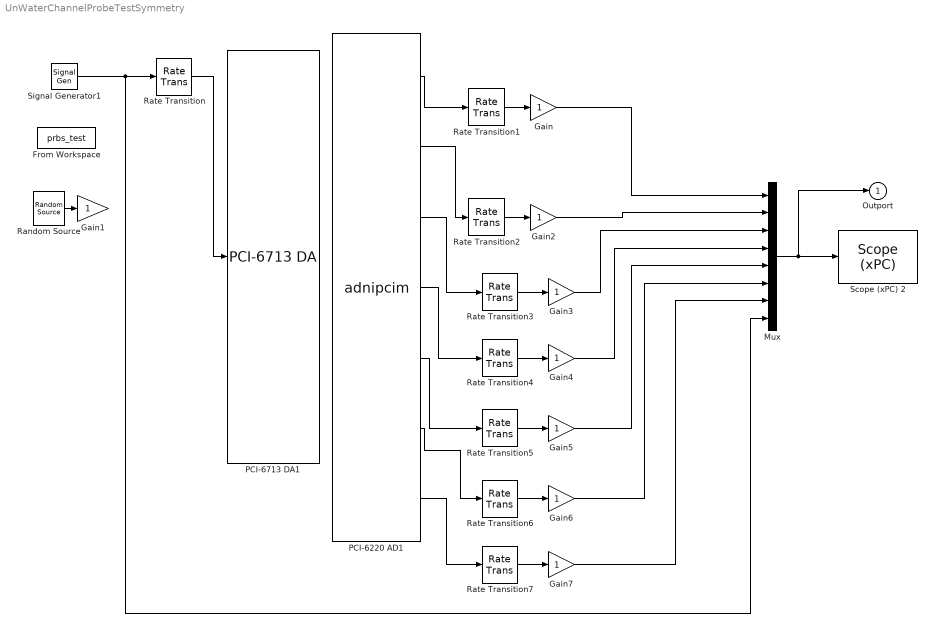
/*
 * UnWaterChannelProbeTestSymmetry.c
 *
 * Code generation for model "UnWaterChannelProbeTestSymmetry.mdl".
 *
 * Model version              : 1.97
 * Simulink Coder version : 8.0 (R2011a) 09-Mar-2011
 * C source code generated on : Mon Jul 15 14:46:02 2013
 *
 * Target selection: xpctarget.tlc
 * Note: GRT includes extra infrastructure and instrumentation for prototyping
 * Embedded hardware selection: Generic->32-bit x86 compatible
 * Code generation objectives: Unspecified
 * Validation result: Not run
 */

#include "rt_logging_mmi.h"
#include "UnWaterChannelProbeTestSymmetry_capi.h"
#include "UnWaterChannelProbeTestSymmetry.h"
#include "UnWaterChannelProbeTestSymmetry_private.h"
#include <stdio.h>
#include "UnWaterChannelProbeTestSymmetry_dt.h"

/* Block signals (auto storage) */
BlockIO_UnWaterChannelProbeTestSymmetry UnWaterChannelProbeTestSymmetry_B;

/* Block states (auto storage) */
D_Work_UnWaterChannelProbeTestSymmetry UnWaterChannelProbeTestSymmetry_DWork;

/* External outputs (root outports fed by signals with auto storage) */
ExternalOutputs_UnWaterChannelProbeTestSymmetry
  UnWaterChannelProbeTestSymmetry_Y;

/* Real-time model */
rtModel_UnWaterChannelProbeTestSymmetry UnWaterChannelProbeTestSymmetry_rtM_;
rtModel_UnWaterChannelProbeTestSymmetry *const
  UnWaterChannelProbeTestSymmetry_rtM = &UnWaterChannelProbeTestSymmetry_rtM_;
void RandSrcInitState_U_64(const uint32_T seed[], real_T state[], int32_T nChans)
{
  int32_T i;
  uint32_T j;
  int32_T k;
  int32_T n;
  real_T d;

  /* Start for S-Function (sdsprandsrc2): '<Root>/Random Source' */
  /* RandSrcInitState_U_64 */
  for (i = 0; i < nChans; i++) {
    j = seed[i] != 0U ? seed[i] : 2147483648U;
    state[35 * i + 34] = (real_T)j;
    for (k = 0; k < 32; k++) {
      d = 0.0;
      for (n = 0; n < 53; n++) {
        j ^= j << 13;
        j ^= j >> 17;
        j ^= j << 5;
        d = (real_T)((int32_T)(j >> 19) & 1) + (d + d);
      }

      state[35 * i + k] = ldexp(d, -53);
    }

    state[35 * i + 32] = 0.0;
    state[35 * i + 33] = 0.0;
  }

  /* End of S-Function (sdsprandsrc2): '<Root>/Random Source' */
}

void RandSrc_U_D(real_T y[], const real_T minVec[], int32_T minLen, const real_T
                 maxVec[], int32_T maxLen, real_T state[], int32_T nChans,
                 int32_T nSamps)
{
  int32_T one;
  int32_T lsw;
  int8_T (*onePtr)[];
  int32_T chan;
  real_T min;
  real_T max;
  int32_T samps;
  real_T d;
  int32_T i;
  uint32_T j;

  /* Start for S-Function (sdsprandsrc2): '<Root>/Random Source' */
  /* RandSrc_U_D */
  one = 1;
  onePtr = (int8_T (*)[])&one;
  lsw = ((*onePtr)[0U] == 0);
  for (chan = 0; chan < nChans; chan++) {
    min = minVec[minLen > 1 ? chan : 0];
    max = maxVec[maxLen > 1 ? chan : 0];
    max -= min;
    d = state[chan * 35 + 33];
    i = (int32_T)((uint32_T)d & 31U);
    d = state[chan * 35 + 34];
    j = (uint32_T)d;
    for (samps = 0; samps < nSamps; samps++) {
      /* "Subtract with borrow" generator */
      d = state[((i + 20) & 31) + chan * 35];
      d -= state[((i + 5) & 31) + chan * 35];
      d -= state[chan * 35 + 32];
      if (d >= 0.0) {
        state[chan * 35 + 32] = 0.0;
      } else {
        d++;

        /* set 1 in LSB */
        state[chan * 35 + 32] = 1.1102230246251565E-16;
      }

      state[chan * 35 + i] = d;
      i = (i + 1) & 31;

      /* XOR with shift register sequence */
      (*(int32_T (*)[])&d)[lsw] ^= (int32_T)j;
      j ^= j << 13;
      j ^= j >> 17;
      j ^= j << 5;
      (*(int32_T (*)[])&d)[lsw ^ 1] ^= (int32_T)(j & 1048575U);
      y[chan * nSamps + samps] = max * d + min;
    }

    state[chan * 35 + 33] = (real_T)i;
    state[chan * 35 + 34] = (real_T)j;
  }

  /* End of S-Function (sdsprandsrc2): '<Root>/Random Source' */
}

void RandSrcCreateSeeds_64(uint32_T initSeed, uint32_T seedArray[], int32_T
  numSeeds)
{
  real_T state[35];
  real_T tmp;
  real_T min;
  real_T max;
  int32_T i;
  real_T tmp_0;

  /* Start for S-Function (sdsprandsrc2): '<Root>/Random Source' */
  /* RandSrcCreateSeeds_64 */
  min = 0.0;
  max = 1.0;
  RandSrcInitState_U_64(&initSeed, state, 1);
  for (i = 0; i < numSeeds; i++) {
    RandSrc_U_D(&tmp, &min, 1, &max, 1, state, 1, 1);
    tmp_0 = tmp * 2.147483648E+9;
    seedArray[i] = (uint32_T)tmp_0;
  }

  /* End of S-Function (sdsprandsrc2): '<Root>/Random Source' */
}

/* Model output function */
void UnWaterChannelProbeTestSymmetry_output(int_T tid)
{
  real_T temp;

  /* Level2 S-Function Block: '<Root>/PCI-6220 AD1' (adnipcim) */
  {
    SimStruct *rts = UnWaterChannelProbeTestSymmetry_rtM->childSfunctions[0];
    sfcnOutputs(rts, 1);
  }

  /* RateTransition: '<Root>/Rate Transition1' */
  UnWaterChannelProbeTestSymmetry_B.RateTransition1 =
    UnWaterChannelProbeTestSymmetry_B.PCI6220AD1_o1;

  /* Gain: '<Root>/Gain' */
  UnWaterChannelProbeTestSymmetry_B.Gain =
    UnWaterChannelProbeTestSymmetry_P.Gain_Gain *
    UnWaterChannelProbeTestSymmetry_B.RateTransition1;

  /* RateTransition: '<Root>/Rate Transition2' */
  UnWaterChannelProbeTestSymmetry_B.RateTransition2 =
    UnWaterChannelProbeTestSymmetry_B.PCI6220AD1_o2;

  /* Gain: '<Root>/Gain2' */
  UnWaterChannelProbeTestSymmetry_B.Gain2 =
    UnWaterChannelProbeTestSymmetry_P.Gain2_Gain *
    UnWaterChannelProbeTestSymmetry_B.RateTransition2;

  /* RateTransition: '<Root>/Rate Transition3' */
  UnWaterChannelProbeTestSymmetry_B.RateTransition3 =
    UnWaterChannelProbeTestSymmetry_B.PCI6220AD1_o3;

  /* Gain: '<Root>/Gain3' */
  UnWaterChannelProbeTestSymmetry_B.Gain3 =
    UnWaterChannelProbeTestSymmetry_P.Gain3_Gain *
    UnWaterChannelProbeTestSymmetry_B.RateTransition3;

  /* RateTransition: '<Root>/Rate Transition4' */
  UnWaterChannelProbeTestSymmetry_B.RateTransition4 =
    UnWaterChannelProbeTestSymmetry_B.PCI6220AD1_o4;

  /* Gain: '<Root>/Gain4' */
  UnWaterChannelProbeTestSymmetry_B.Gain4 =
    UnWaterChannelProbeTestSymmetry_P.Gain4_Gain *
    UnWaterChannelProbeTestSymmetry_B.RateTransition4;

  /* RateTransition: '<Root>/Rate Transition5' */
  UnWaterChannelProbeTestSymmetry_B.RateTransition5 =
    UnWaterChannelProbeTestSymmetry_B.PCI6220AD1_o5;

  /* Gain: '<Root>/Gain5' */
  UnWaterChannelProbeTestSymmetry_B.Gain5 =
    UnWaterChannelProbeTestSymmetry_P.Gain5_Gain *
    UnWaterChannelProbeTestSymmetry_B.RateTransition5;

  /* RateTransition: '<Root>/Rate Transition6' */
  UnWaterChannelProbeTestSymmetry_B.RateTransition6 =
    UnWaterChannelProbeTestSymmetry_B.PCI6220AD1_o6;

  /* Gain: '<Root>/Gain6' */
  UnWaterChannelProbeTestSymmetry_B.Gain6 =
    UnWaterChannelProbeTestSymmetry_P.Gain6_Gain *
    UnWaterChannelProbeTestSymmetry_B.RateTransition6;

  /* RateTransition: '<Root>/Rate Transition7' */
  UnWaterChannelProbeTestSymmetry_B.RateTransition7 =
    UnWaterChannelProbeTestSymmetry_B.PCI6220AD1_o7;

  /* Gain: '<Root>/Gain7' */
  UnWaterChannelProbeTestSymmetry_B.Gain7 =
    UnWaterChannelProbeTestSymmetry_P.Gain7_Gain *
    UnWaterChannelProbeTestSymmetry_B.RateTransition7;

  /* SignalGenerator: '<Root>/Signal Generator1' */
  temp = UnWaterChannelProbeTestSymmetry_P.SignalGenerator1_Frequency *
    UnWaterChannelProbeTestSymmetry_rtM->Timing.t[0];
  if (temp - floor(temp) >= 0.5) {
    UnWaterChannelProbeTestSymmetry_B.SignalGenerator1 =
      UnWaterChannelProbeTestSymmetry_P.SignalGenerator1_Amplitude;
  } else {
    UnWaterChannelProbeTestSymmetry_B.SignalGenerator1 =
      -UnWaterChannelProbeTestSymmetry_P.SignalGenerator1_Amplitude;
  }

  /* End of SignalGenerator: '<Root>/Signal Generator1' */

  /* Outport: '<Root>/Outport' */
  UnWaterChannelProbeTestSymmetry_Y.Outport[0] =
    UnWaterChannelProbeTestSymmetry_B.Gain;
  UnWaterChannelProbeTestSymmetry_Y.Outport[1] =
    UnWaterChannelProbeTestSymmetry_B.Gain2;
  UnWaterChannelProbeTestSymmetry_Y.Outport[2] =
    UnWaterChannelProbeTestSymmetry_B.Gain3;
  UnWaterChannelProbeTestSymmetry_Y.Outport[3] =
    UnWaterChannelProbeTestSymmetry_B.Gain4;
  UnWaterChannelProbeTestSymmetry_Y.Outport[4] =
    UnWaterChannelProbeTestSymmetry_B.Gain5;
  UnWaterChannelProbeTestSymmetry_Y.Outport[5] =
    UnWaterChannelProbeTestSymmetry_B.Gain6;
  UnWaterChannelProbeTestSymmetry_Y.Outport[6] =
    UnWaterChannelProbeTestSymmetry_B.Gain7;
  UnWaterChannelProbeTestSymmetry_Y.Outport[7] =
    UnWaterChannelProbeTestSymmetry_B.SignalGenerator1;

  /* RateTransition: '<Root>/Rate Transition' */
  UnWaterChannelProbeTestSymmetry_B.RateTransition =
    UnWaterChannelProbeTestSymmetry_B.SignalGenerator1;

  /* Level2 S-Function Block: '<Root>/PCI-6713 DA1' (danipci671x) */
  {
    SimStruct *rts = UnWaterChannelProbeTestSymmetry_rtM->childSfunctions[1];
    sfcnOutputs(rts, 1);
  }

  /* ok to acquire for <S1>/S-Function */
  UnWaterChannelProbeTestSymmetry_DWork.SFunction_IWORK.AcquireOK = 1;

  /* FromWorkspace: '<Root>/From Workspace' */
  {
    real_T t = UnWaterChannelProbeTestSymmetry_rtM->Timing.t[1];
    real_T *pTimeValues = (real_T *)
      UnWaterChannelProbeTestSymmetry_DWork.FromWorkspace_PWORK.TimePtr;
    real_T *pDataValues = (real_T *)
      UnWaterChannelProbeTestSymmetry_DWork.FromWorkspace_PWORK.DataPtr;
    if (t < pTimeValues[0]) {
      UnWaterChannelProbeTestSymmetry_B.FromWorkspace = 0.0;
    } else if (t == pTimeValues[99]) {
      UnWaterChannelProbeTestSymmetry_B.FromWorkspace = pDataValues[99];
    } else if (t > pTimeValues[99]) {
      UnWaterChannelProbeTestSymmetry_B.FromWorkspace = 0.0;
    } else {
      int_T currTimeIndex =
        UnWaterChannelProbeTestSymmetry_DWork.FromWorkspace_IWORK.PrevIndex;
      if (t < pTimeValues[currTimeIndex]) {
        while (t < pTimeValues[currTimeIndex]) {
          currTimeIndex--;
        }
      } else {
        while (t >= pTimeValues[currTimeIndex + 1]) {
          currTimeIndex++;
        }
      }

      UnWaterChannelProbeTestSymmetry_B.FromWorkspace =
        pDataValues[currTimeIndex];
      UnWaterChannelProbeTestSymmetry_DWork.FromWorkspace_IWORK.PrevIndex =
        currTimeIndex;
    }
  }

  /* S-Function (sdsprandsrc2): '<Root>/Random Source' */
  RandSrc_U_D(&UnWaterChannelProbeTestSymmetry_B.RandomSource,
              &UnWaterChannelProbeTestSymmetry_P.RandomSource_MinRTP, 1,
              &UnWaterChannelProbeTestSymmetry_P.RandomSource_MaxRTP, 1,
              UnWaterChannelProbeTestSymmetry_DWork.RandomSource_STATE_DWORK, 1,
              1);

  /* Gain: '<Root>/Gain1' */
  UnWaterChannelProbeTestSymmetry_B.Gain1 =
    UnWaterChannelProbeTestSymmetry_P.Gain1_Gain *
    UnWaterChannelProbeTestSymmetry_B.RandomSource;

  /* tid is required for a uniform function interface.
   * Argument tid is not used in the function. */
  UNUSED_PARAMETER(tid);
}

/* Model update function */
void UnWaterChannelProbeTestSymmetry_update(int_T tid)
{
  /* Update absolute time for base rate */
  /* The "clockTick0" counts the number of times the code of this task has
   * been executed. The absolute time is the multiplication of "clockTick0"
   * and "Timing.stepSize0". Size of "clockTick0" ensures timer will not
   * overflow during the application lifespan selected.
   * Timer of this task consists of two 32 bit unsigned integers.
   * The two integers represent the low bits Timing.clockTick0 and the high bits
   * Timing.clockTickH0. When the low bit overflows to 0, the high bits increment.
   */
  if (!(++UnWaterChannelProbeTestSymmetry_rtM->Timing.clockTick0)) {
    ++UnWaterChannelProbeTestSymmetry_rtM->Timing.clockTickH0;
  }

  UnWaterChannelProbeTestSymmetry_rtM->Timing.t[0] =
    UnWaterChannelProbeTestSymmetry_rtM->Timing.clockTick0 *
    UnWaterChannelProbeTestSymmetry_rtM->Timing.stepSize0 +
    UnWaterChannelProbeTestSymmetry_rtM->Timing.clockTickH0 *
    UnWaterChannelProbeTestSymmetry_rtM->Timing.stepSize0 * 4294967296.0;

  {
    /* Update absolute timer for sample time: [0.0001s, 0.0s] */
    /* The "clockTick1" counts the number of times the code of this task has
     * been executed. The absolute time is the multiplication of "clockTick1"
     * and "Timing.stepSize1". Size of "clockTick1" ensures timer will not
     * overflow during the application lifespan selected.
     * Timer of this task consists of two 32 bit unsigned integers.
     * The two integers represent the low bits Timing.clockTick1 and the high bits
     * Timing.clockTickH1. When the low bit overflows to 0, the high bits increment.
     */
    if (!(++UnWaterChannelProbeTestSymmetry_rtM->Timing.clockTick1)) {
      ++UnWaterChannelProbeTestSymmetry_rtM->Timing.clockTickH1;
    }

    UnWaterChannelProbeTestSymmetry_rtM->Timing.t[1] =
      UnWaterChannelProbeTestSymmetry_rtM->Timing.clockTick1 *
      UnWaterChannelProbeTestSymmetry_rtM->Timing.stepSize1 +
      UnWaterChannelProbeTestSymmetry_rtM->Timing.clockTickH1 *
      UnWaterChannelProbeTestSymmetry_rtM->Timing.stepSize1 * 4294967296.0;
  }

  /* tid is required for a uniform function interface.
   * Argument tid is not used in the function. */
  UNUSED_PARAMETER(tid);
}
